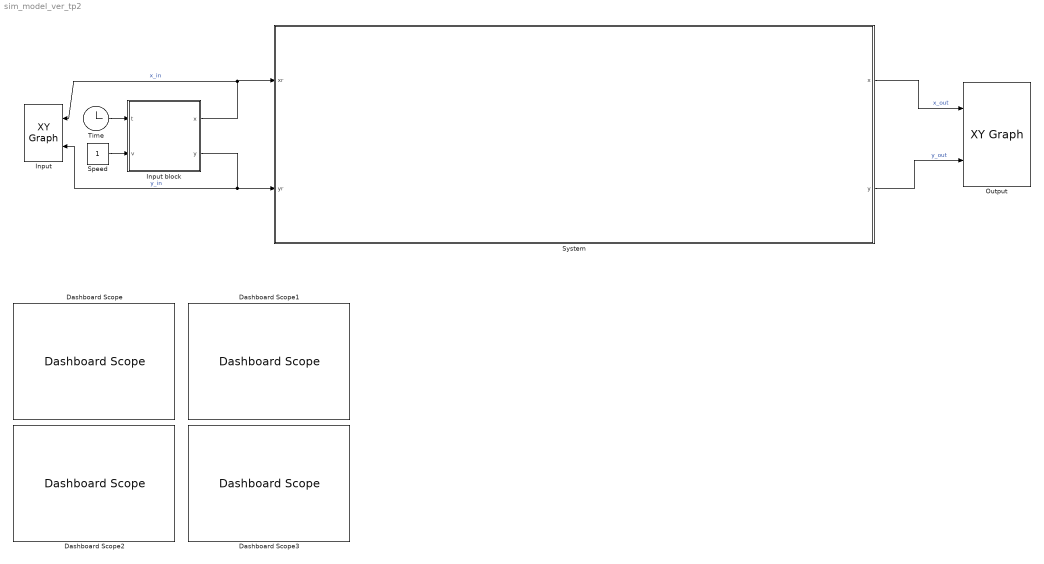
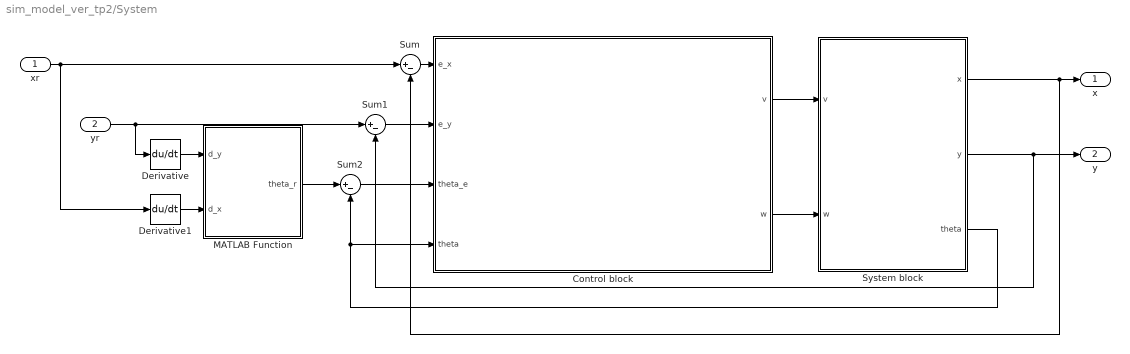
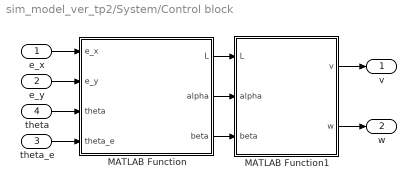
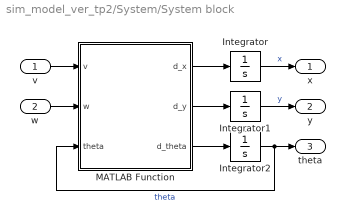
== matlab function sim_model_ver_tp2/System/Control block/MATLAB Function ==
function [L , alpha, beta] = to_parameters(e_x , e_y , theta , theta_e)
    L = sqrt(e_x * e_x + e_y * e_y);
    alpha = mod(atan2(e_y , e_x) , 2*pi) - theta;
    beta = theta_e - alpha;
end

== matlab function sim_model_ver_tp2/System/System block/MATLAB Function ==
function [d_x,  d_y,  d_theta] = system(v , w , theta)

    d_x = v*cos(theta);
    d_y = v*sin(theta);
    d_theta = w;

end

== matlab function sim_model_ver_tp2/System/Control block/MATLAB Function1 ==
function [v , w] = to_v_w(L, alpha , beta)

%old
% k_L = -3;
% k_alpha = -210;
% k_beta = 4.5;


k_L = -5.5;
k_alpha = -220;
k_beta = 2;

v = -k_L * L;
w = -k_alpha * alpha - k_beta * beta;

end

== matlab function sim_model_ver_tp2/System/MATLAB Function ==
function theta_r = arctan2(d_y , d_x)
    theta_r = mod(atan2(d_y , d_x) , 2*pi);
end

== matlab function sim_model_ver_tp2/Input block ==
function [x , y] = input(t , v)

    h = 10; %Straight line distance
    d = 5; %"Circle" diameter

    
    t = (mod(t , 2*h/v + 2*(d/v))); %% Loop

    is_on_part_1_flag = (t <= h/v);
    is_on_part_2_flag = (t > h/v && t <= h/v + d/v);
    is_on_part_3_flag = (t > h/v + d/v && t <= (2*h/v)+d/v); 
    is_on_part_4_flag = (~is_on_part_1_flag &&...
                         ~is_on_part_2_flag &&...
                         ~is_on_part_3_flag);
    
    timestamp = (is_on_part_1_flag) * t +...
                (is_on_part_2_flag) * (t - h/v) + ... 
                (is_on_part_3_flag) * (t - h/v - d/v)+...
                (is_on_part_4_flag) * (t - (2*h/v + (d/v)));


    y = is_on_part_1_flag * (timestamp*v)+...
        is_on_part_2_flag * (h + (d/2) * sin(pi*timestamp*v/d))+... 
        is_on_part_3_flag * (h-timestamp*v)+...
        is_on_part_4_flag * (-(d/2) * sin(pi*timestamp*v/d));

        
    x = is_on_part_1_flag * (0)+...
        is_on_part_2_flag * (timestamp*v)+... 
        is_on_part_3_flag * (d)+...
        is_on_part_4_flag * ((d - timestamp*v >0)*(d - timestamp*v));

            
            


end

//
// Academic License - for use in teaching, academic research, and meeting
// course requirements at degree granting institutions only.  Not for
// government, commercial, or other organizational use.
//
// File: sim_model_ver_tp2.cpp
//
// Code generated for Simulink model 'sim_model_ver_tp2'.
//
// Model version                  : 1.202
// Simulink Coder version         : 9.4 (R2020b) 29-Jul-2020
// C/C++ source code generated on : Sun Oct 18 13:07:27 2020
//
// Target selection: ert.tlc
// Embedded hardware selection: Intel->x86-64 (Windows64)
// Code generation objectives: Unspecified
// Validation result: Not run
//
#include "sim_model_ver_tp2.h"
#include "sim_model_ver_tp2_private.h"

//
// This function updates continuous states using the ODE3 fixed-step
// solver algorithm
//
void sim_model_ver_tp2ModelClass::rt_ertODEUpdateContinuousStates(RTWSolverInfo *
  si )
{
  // Solver Matrices
  static const real_T rt_ODE3_A[3] = {
    1.0/2.0, 3.0/4.0, 1.0
  };

  static const real_T rt_ODE3_B[3][3] = {
    { 1.0/2.0, 0.0, 0.0 },

    { 0.0, 3.0/4.0, 0.0 },

    { 2.0/9.0, 1.0/3.0, 4.0/9.0 }
  };

  time_T t = rtsiGetT(si);
  time_T tnew = rtsiGetSolverStopTime(si);
  time_T h = rtsiGetStepSize(si);
  real_T *x = rtsiGetContStates(si);
  ODE3_IntgData *id = static_cast<ODE3_IntgData *>(rtsiGetSolverData(si));
  real_T *y = id->y;
  real_T *f0 = id->f[0];
  real_T *f1 = id->f[1];
  real_T *f2 = id->f[2];
  real_T hB[3];
  int_T i;
  int_T nXc = 3;
  rtsiSetSimTimeStep(si,MINOR_TIME_STEP);

  // Save the state values at time t in y, we'll use x as ynew.
  (void) std::memcpy(y, x,
                     static_cast<uint_T>(nXc)*sizeof(real_T));

  // Assumes that rtsiSetT and ModelOutputs are up-to-date
  // f0 = f(t,y)
  rtsiSetdX(si, f0);
  sim_model_ver_tp2_derivatives();

  // f(:,2) = feval(odefile, t + hA(1), y + f*hB(:,1), args(:)(*));
  hB[0] = h * rt_ODE3_B[0][0];
  for (i = 0; i < nXc; i++) {
    x[i] = y[i] + (f0[i]*hB[0]);
  }

  rtsiSetT(si, t + h*rt_ODE3_A[0]);
  rtsiSetdX(si, f1);
  this->step();
  sim_model_ver_tp2_derivatives();

  // f(:,3) = feval(odefile, t + hA(2), y + f*hB(:,2), args(:)(*));
  for (i = 0; i <= 1; i++) {
    hB[i] = h * rt_ODE3_B[1][i];
  }

  for (i = 0; i < nXc; i++) {
    x[i] = y[i] + (f0[i]*hB[0] + f1[i]*hB[1]);
  }

  rtsiSetT(si, t + h*rt_ODE3_A[1]);
  rtsiSetdX(si, f2);
  this->step();
  sim_model_ver_tp2_derivatives();

  // tnew = t + hA(3);
  // ynew = y + f*hB(:,3);
  for (i = 0; i <= 2; i++) {
    hB[i] = h * rt_ODE3_B[2][i];
  }

  for (i = 0; i < nXc; i++) {
    x[i] = y[i] + (f0[i]*hB[0] + f1[i]*hB[1] + f2[i]*hB[2]);
  }

  rtsiSetT(si, tnew);
  rtsiSetSimTimeStep(si,MAJOR_TIME_STEP);
}

real_T rt_atan2d_snf(real_T u0, real_T u1)
{
  real_T y;
  int32_T u0_0;
  int32_T u1_0;
  if (rtIsNaN(u0) || rtIsNaN(u1)) {
    y = (rtNaN);
  } else if (rtIsInf(u0) && rtIsInf(u1)) {
    if (u0 > 0.0) {
      u0_0 = 1;
    } else {
      u0_0 = -1;
    }

    if (u1 > 0.0) {
      u1_0 = 1;
    } else {
      u1_0 = -1;
    }

    y = std::atan2(static_cast<real_T>(u0_0), static_cast<real_T>(u1_0));
  } else if (u1 == 0.0) {
    if (u0 > 0.0) {
      y = RT_PI / 2.0;
    } else if (u0 < 0.0) {
      y = -(RT_PI / 2.0);
    } else {
      y = 0.0;
    }
  } else {
    y = std::atan2(u0, u1);
  }

  return y;
}

// Model step function
void sim_model_ver_tp2ModelClass::step()
{
  if (rtmIsMajorTimeStep((&sim_model_ver_tp2_M))) {
    // set solver stop time
    rtsiSetSolverStopTime(&(&sim_model_ver_tp2_M)->solverInfo,
                          (((&sim_model_ver_tp2_M)->Timing.clockTick0+1)*
      (&sim_model_ver_tp2_M)->Timing.stepSize0));
  }                                    // end MajorTimeStep

  // Update absolute time of base rate at minor time step
  if (rtmIsMinorTimeStep((&sim_model_ver_tp2_M))) {
    (&sim_model_ver_tp2_M)->Timing.t[0] = rtsiGetT(&(&sim_model_ver_tp2_M)
      ->solverInfo);
  }

  {
    real_T b_r;
    real_T q;
    real_T rtb_Derivative;
    real_T rtb_Derivative1;
    real_T rtb_Sum1;
    real_T timestamp;
    real_T *lastU;
    boolean_T is_on_part_1_flag;
    boolean_T is_on_part_2_flag;
    boolean_T is_on_part_3_flag;
    boolean_T is_on_part_4_flag;

    // Clock: '<Root>/Time' incorporates:
    //   Derivative: '<S4>/Derivative'
    //   Derivative: '<S4>/Derivative1'

    rtb_Derivative1 = (&sim_model_ver_tp2_M)->Timing.t[0];

    // MATLAB Function: '<Root>/Input block' incorporates:
    //   Clock: '<Root>/Time'

    if (rtIsNaN(rtb_Derivative1)) {
      timestamp = (rtNaN);
    } else if (rtIsInf(rtb_Derivative1)) {
      timestamp = (rtNaN);
    } else if (rtb_Derivative1 == 0.0) {
      timestamp = 0.0;
    } else {
      timestamp = std::fmod(rtb_Derivative1, 30.0);
      if (timestamp == 0.0) {
        timestamp = 0.0;
      } else {
        if (rtb_Derivative1 < 0.0) {
          timestamp += 30.0;
        }
      }
    }

    is_on_part_1_flag = (timestamp <= 10.0);
    if (timestamp > 10.0) {
      if (timestamp <= 15.0) {
        is_on_part_2_flag = true;
        is_on_part_3_flag = false;
      } else {
        is_on_part_2_flag = false;
        is_on_part_3_flag = (timestamp <= 25.0);
      }
    } else {
      is_on_part_2_flag = false;
      is_on_part_3_flag = false;
    }

    is_on_part_4_flag = ((!is_on_part_1_flag) && (!is_on_part_2_flag) &&
                         (!is_on_part_3_flag));
    timestamp = (((timestamp - 10.0) * static_cast<real_T>(is_on_part_2_flag) +
                  static_cast<real_T>(is_on_part_1_flag) * timestamp) +
                 ((timestamp - 10.0) - 5.0) * static_cast<real_T>
                 (is_on_part_3_flag)) + (timestamp - 25.0) * static_cast<real_T>
      (is_on_part_4_flag);
    rtb_Sum1 = std::sin(3.1415926535897931 * timestamp / 5.0);
    sim_model_ver_tp2_B.y = (((2.5 * rtb_Sum1 + 10.0) * static_cast<real_T>
      (is_on_part_2_flag) + static_cast<real_T>(is_on_part_1_flag) * timestamp)
      + (10.0 - timestamp) * static_cast<real_T>(is_on_part_3_flag)) + -2.5 *
      rtb_Sum1 * static_cast<real_T>(is_on_part_4_flag);
    sim_model_ver_tp2_B.x = static_cast<real_T>(5.0 - timestamp > 0.0) * (5.0 -
      timestamp) * static_cast<real_T>(is_on_part_4_flag) + (static_cast<real_T>
      (is_on_part_2_flag) * timestamp + static_cast<real_T>(is_on_part_3_flag) *
      5.0);

    // End of MATLAB Function: '<Root>/Input block'

    // Sum: '<S4>/Sum' incorporates:
    //   Integrator: '<S7>/Integrator'

    timestamp = sim_model_ver_tp2_B.x - sim_model_ver_tp2_X.Integrator_CSTATE;

    // Sum: '<S4>/Sum1' incorporates:
    //   Integrator: '<S7>/Integrator1'

    rtb_Sum1 = sim_model_ver_tp2_B.y - sim_model_ver_tp2_X.Integrator1_CSTATE;

    // Derivative: '<S4>/Derivative'
    if ((sim_model_ver_tp2_DW.TimeStampA >= rtb_Derivative1) &&
        (sim_model_ver_tp2_DW.TimeStampB >= rtb_Derivative1)) {
      rtb_Derivative = 0.0;
    } else {
      q = sim_model_ver_tp2_DW.TimeStampA;
      lastU = &sim_model_ver_tp2_DW.LastUAtTimeA;
      if (sim_model_ver_tp2_DW.TimeStampA < sim_model_ver_tp2_DW.TimeStampB) {
        if (sim_model_ver_tp2_DW.TimeStampB < rtb_Derivative1) {
          q = sim_model_ver_tp2_DW.TimeStampB;
          lastU = &sim_model_ver_tp2_DW.LastUAtTimeB;
        }
      } else {
        if (sim_model_ver_tp2_DW.TimeStampA >= rtb_Derivative1) {
          q = sim_model_ver_tp2_DW.TimeStampB;
          lastU = &sim_model_ver_tp2_DW.LastUAtTimeB;
        }
      }

      rtb_Derivative = (sim_model_ver_tp2_B.y - *lastU) / (rtb_Derivative1 - q);
    }

    // Derivative: '<S4>/Derivative1'
    if ((sim_model_ver_tp2_DW.TimeStampA_i >= rtb_Derivative1) &&
        (sim_model_ver_tp2_DW.TimeStampB_c >= rtb_Derivative1)) {
      rtb_Derivative1 = 0.0;
    } else {
      q = sim_model_ver_tp2_DW.TimeStampA_i;
      lastU = &sim_model_ver_tp2_DW.LastUAtTimeA_g;
      if (sim_model_ver_tp2_DW.TimeStampA_i < sim_model_ver_tp2_DW.TimeStampB_c)
      {
        if (sim_model_ver_tp2_DW.TimeStampB_c < rtb_Derivative1) {
          q = sim_model_ver_tp2_DW.TimeStampB_c;
          lastU = &sim_model_ver_tp2_DW.LastUAtTimeB_e;
        }
      } else {
        if (sim_model_ver_tp2_DW.TimeStampA_i >= rtb_Derivative1) {
          q = sim_model_ver_tp2_DW.TimeStampB_c;
          lastU = &sim_model_ver_tp2_DW.LastUAtTimeB_e;
        }
      }

      rtb_Derivative1 = (sim_model_ver_tp2_B.x - *lastU) / (rtb_Derivative1 - q);
    }

    // MATLAB Function: '<S4>/MATLAB Function'
    rtb_Derivative = rt_atan2d_snf(rtb_Derivative, rtb_Derivative1);
    if (rtIsNaN(rtb_Derivative)) {
      rtb_Derivative1 = (rtNaN);
    } else if (rtIsInf(rtb_Derivative)) {
      rtb_Derivative1 = (rtNaN);
    } else if (rtb_Derivative == 0.0) {
      rtb_Derivative1 = 0.0;
    } else {
      rtb_Derivative1 = std::fmod(rtb_Derivative, 6.2831853071795862);
      is_on_part_1_flag = (rtb_Derivative1 == 0.0);
      if (!is_on_part_1_flag) {
        q = std::abs(rtb_Derivative / 6.2831853071795862);
        is_on_part_1_flag = !(std::abs(q - std::floor(q + 0.5)) >
                              2.2204460492503131E-16 * q);
      }

      if (is_on_part_1_flag) {
        rtb_Derivative1 = 0.0;
      } else {
        if (rtb_Derivative < 0.0) {
          rtb_Derivative1 += 6.2831853071795862;
        }
      }
    }

    // End of MATLAB Function: '<S4>/MATLAB Function'

    // MATLAB Function: '<S5>/MATLAB Function' incorporates:
    //   Integrator: '<S7>/Integrator2'

    rtb_Derivative = rt_atan2d_snf(rtb_Sum1, timestamp);
    if (rtIsNaN(rtb_Derivative)) {
      b_r = (rtNaN);
    } else if (rtIsInf(rtb_Derivative)) {
      b_r = (rtNaN);
    } else if (rtb_Derivative == 0.0) {
      b_r = 0.0;
    } else {
      b_r = std::fmod(rtb_Derivative, 6.2831853071795862);
      is_on_part_1_flag = (b_r == 0.0);
      if (!is_on_part_1_flag) {
        q = std::abs(rtb_Derivative / 6.2831853071795862);
        is_on_part_1_flag = !(std::abs(q - std::floor(q + 0.5)) >
                              2.2204460492503131E-16 * q);
      }

      if (is_on_part_1_flag) {
        b_r = 0.0;
      } else {
        if (rtb_Derivative < 0.0) {
          b_r += 6.2831853071795862;
        }
      }
    }

    rtb_Derivative = b_r - sim_model_ver_tp2_X.Integrator2_CSTATE;

    // MATLAB Function: '<S5>/MATLAB Function1' incorporates:
    //   MATLAB Function: '<S5>/MATLAB Function'

    timestamp = std::sqrt(timestamp * timestamp + rtb_Sum1 * rtb_Sum1) * 5.5;

    // MATLAB Function: '<S7>/MATLAB Function' incorporates:
    //   Integrator: '<S7>/Integrator2'
    //   MATLAB Function: '<S5>/MATLAB Function'
    //   MATLAB Function: '<S5>/MATLAB Function1'
    //   Sum: '<S4>/Sum2'

    sim_model_ver_tp2_B.d_x = timestamp * std::cos
      (sim_model_ver_tp2_X.Integrator2_CSTATE);
    sim_model_ver_tp2_B.d_y = timestamp * std::sin
      (sim_model_ver_tp2_X.Integrator2_CSTATE);
    sim_model_ver_tp2_B.d_theta = 220.0 * rtb_Derivative - ((rtb_Derivative1 -
      sim_model_ver_tp2_X.Integrator2_CSTATE) - rtb_Derivative) * 2.0;
  }

  if (rtmIsMajorTimeStep((&sim_model_ver_tp2_M))) {
    real_T *lastU;

    // Update for Derivative: '<S4>/Derivative'
    if (sim_model_ver_tp2_DW.TimeStampA == (rtInf)) {
      sim_model_ver_tp2_DW.TimeStampA = (&sim_model_ver_tp2_M)->Timing.t[0];
      lastU = &sim_model_ver_tp2_DW.LastUAtTimeA;
    } else if (sim_model_ver_tp2_DW.TimeStampB == (rtInf)) {
      sim_model_ver_tp2_DW.TimeStampB = (&sim_model_ver_tp2_M)->Timing.t[0];
      lastU = &sim_model_ver_tp2_DW.LastUAtTimeB;
    } else if (sim_model_ver_tp2_DW.TimeStampA < sim_model_ver_tp2_DW.TimeStampB)
    {
      sim_model_ver_tp2_DW.TimeStampA = (&sim_model_ver_tp2_M)->Timing.t[0];
      lastU = &sim_model_ver_tp2_DW.LastUAtTimeA;
    } else {
      sim_model_ver_tp2_DW.TimeStampB = (&sim_model_ver_tp2_M)->Timing.t[0];
      lastU = &sim_model_ver_tp2_DW.LastUAtTimeB;
    }

    *lastU = sim_model_ver_tp2_B.y;

    // End of Update for Derivative: '<S4>/Derivative'

    // Update for Derivative: '<S4>/Derivative1'
    if (sim_model_ver_tp2_DW.TimeStampA_i == (rtInf)) {
      sim_model_ver_tp2_DW.TimeStampA_i = (&sim_model_ver_tp2_M)->Timing.t[0];
      lastU = &sim_model_ver_tp2_DW.LastUAtTimeA_g;
    } else if (sim_model_ver_tp2_DW.TimeStampB_c == (rtInf)) {
      sim_model_ver_tp2_DW.TimeStampB_c = (&sim_model_ver_tp2_M)->Timing.t[0];
      lastU = &sim_model_ver_tp2_DW.LastUAtTimeB_e;
    } else if (sim_model_ver_tp2_DW.TimeStampA_i <
               sim_model_ver_tp2_DW.TimeStampB_c) {
      sim_model_ver_tp2_DW.TimeStampA_i = (&sim_model_ver_tp2_M)->Timing.t[0];
      lastU = &sim_model_ver_tp2_DW.LastUAtTimeA_g;
    } else {
      sim_model_ver_tp2_DW.TimeStampB_c = (&sim_model_ver_tp2_M)->Timing.t[0];
      lastU = &sim_model_ver_tp2_DW.LastUAtTimeB_e;
    }

    *lastU = sim_model_ver_tp2_B.x;

    // End of Update for Derivative: '<S4>/Derivative1'
  }                                    // end MajorTimeStep

  if (rtmIsMajorTimeStep((&sim_model_ver_tp2_M))) {
    rt_ertODEUpdateContinuousStates(&(&sim_model_ver_tp2_M)->solverInfo);

    // Update absolute time for base rate
    // The "clockTick0" counts the number of times the code of this task has
    //  been executed. The absolute time is the multiplication of "clockTick0"
    //  and "Timing.stepSize0". Size of "clockTick0" ensures timer will not
    //  overflow during the application lifespan selected.

    ++(&sim_model_ver_tp2_M)->Timing.clockTick0;
    (&sim_model_ver_tp2_M)->Timing.t[0] = rtsiGetSolverStopTime
      (&(&sim_model_ver_tp2_M)->solverInfo);

    {
      // Update absolute timer for sample time: [0.01s, 0.0s]
      // The "clockTick1" counts the number of times the code of this task has
      //  been executed. The resolution of this integer timer is 0.01, which is the step size
      //  of the task. Size of "clockTick1" ensures timer will not overflow during the
      //  application lifespan selected.

      (&sim_model_ver_tp2_M)->Timing.clockTick1++;
    }
  }                                    // end MajorTimeStep
}
